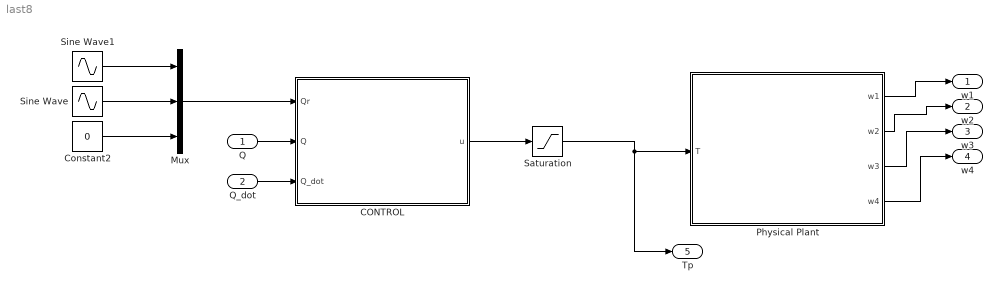
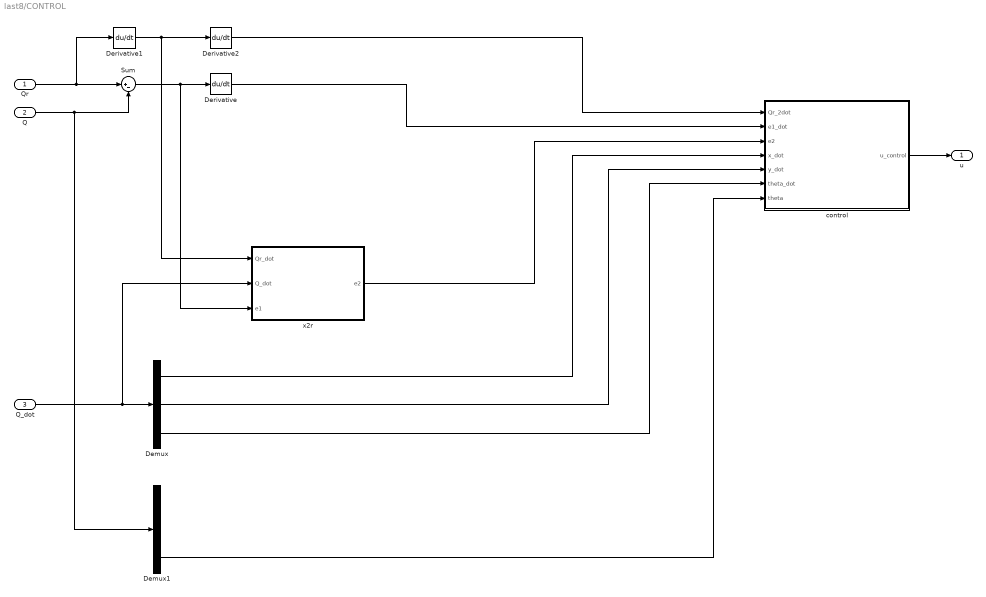
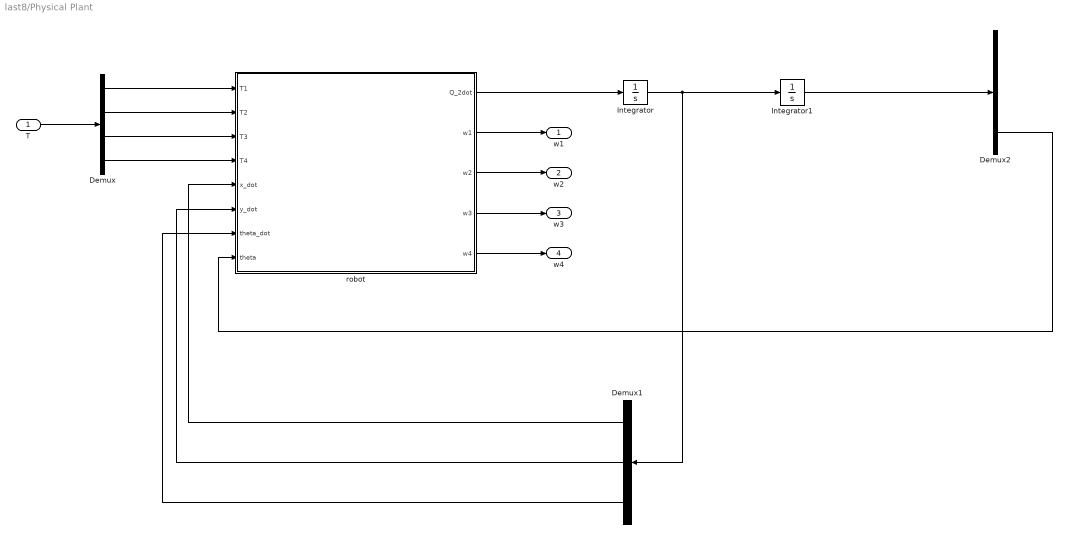
== matlab function last8/Physical Plant/robot ==
function [Q_2dot,w1,w2,w3,w4]  = fcn(T1, T2, T3, T4,x_dot,y_dot,theta_dot,theta)
m = 5;
I = 5;
Ib = 0.1;
l1 = 0.3;
l2 = 0.3;
r = 0.048;
g = 9.81;
u = 0.01;
N = m*g/4;
M =[(m+4*Ib/(r*r)) 0 0; 0 (m+4*Ib/(r*r)) 0; 0 0 (I+4*Ib*(l1+l2)*(l1+l2)/(r*r))];
C = [(m+4*Ib/(r*r))*y_dot*theta_dot;-(m+4*Ib/(r*r))*x_dot*theta_dot;0 ];
B = (1/r)*[(cos(theta)+sin(theta)) (cos(theta)-sin(theta)) (cos(theta)+sin(theta)) (cos(theta)-sin(theta));
         (-cos(theta)+sin(theta)) (cos(theta)+sin(theta)) (-cos(theta)+sin(theta)) (cos(theta)+sin(theta)); 
         (-(l1+l2)) (l1+l2) (l1+l2) (-(l1+l2))];
T = [T1;T2;T3;T4];

xm = cos(theta)*x_dot+sin(theta)*y_dot;
ym = -sin(theta)*x_dot+cos(theta)*y_dot;

v_max = 0.1;
if xm > v_max
    xm = v_max;
elseif xm < -v_max
    xm = -v_max;
end
if ym > v_max
    ym = v_max;
elseif ym < -v_max
    ym = -v_max;
end
if theta_dot > v_max
    theta_dot = v_max;
elseif theta_dot < -v_max
    theta_dot = -v_max;
end

w1 = (1/r)*(xm-ym-(l1+l2)*theta_dot);
w2 = (1/r)*(xm+ym+(l1+l2)*theta_dot);
w3 = (1/r)*(xm-ym+(l1+l2)*theta_dot);
w4 = (1/r)*(xm+ym-(l1+l2)*theta_dot);

% w_max = 2;
% if w1 > w_max
%     w1 = w_max;
% elseif w1 < -w_max
%     w1 = -w_max;
% end
% if w2 > w_max
%     w2 = w_max;
% elseif w2 < -w_max
%     w2 = -w_max;
% end
% if w3 > w_max
%     w3 = w_max;
% elseif w3 < -w_max
%     w3 = -w_max;
% end
% if w4 > w_max
%     w4 = w_max;
% elseif w4 < -w_max
%     w4 = -w_max;
% end

Xi=[u*r*N*sign(w1);u*r*N*sign(w2);u*r*N*sign(w3);u*N*r*sign(w4)];

Q_2dot=inv(M)*(B*T-C-B*Xi);

== matlab function last8/CONTROL/control ==
function u_control = fcn(Qr_2dot,e1_dot,e2,x_dot,y_dot,theta_dot,theta)

m = 5;
I = 5;
Ib = 0.1;
l1 = 0.3;
l2 = 0.3;
r = 0.048;
g = 9.81;
u = 0.01;
N = m*g/4;
M = [(m+4*Ib/(r*r)) 0 0; 0 (m+4*Ib/(r*r)) 0; 0 0 (I+4*Ib*(l1+l2)*(l1+l2)/(r*r))];
C = [(m+4*Ib/(r*r))*y_dot*theta_dot;-(m+4*Ib/(r*r))*x_dot*theta_dot;0 ];
B = (1/r)*[(cos(theta)+sin(theta)) (cos(theta)-sin(theta)) (cos(theta)+sin(theta)) (cos(theta)-sin(theta));
    (-cos(theta)+sin(theta)) (cos(theta)+sin(theta)) (-cos(theta)+sin(theta)) (cos(theta)+sin(theta)); 
    (-(l1+l2)) (l1+l2) (l1+l2) (-(l1+l2))];

xm = cos(theta)*x_dot+sin(theta)*y_dot;
ym = -sin(theta)*x_dot+cos(theta)*y_dot;

v_max = 0.1;
if xm > v_max
    xm = v_max;
elseif xm < -v_max
    xm = -v_max;
end
if ym > v_max
    ym = v_max;
elseif ym < -v_max
    ym = -v_max;
end
if theta_dot > v_max
    theta_dot = v_max;
elseif theta_dot < -v_max
    theta_dot = -v_max;
end

w1 = (1/r)*(xm-ym-(l1+l2)*theta_dot);
w2 = (1/r)*(xm+ym+(l1+l2)*theta_dot);
w3 = (1/r)*(xm-ym+(l1+l2)*theta_dot);
w4 = (1/r)*(xm+ym-(l1+l2)*theta_dot);

% w_max = 2;
% if w1 > w_max
%     w1 = w_max;
% elseif w1 < -w_max
%     w1 = -w_max;
% end
% if w2 > w_max
%     w2 = w_max;
% elseif w2 < -w_max
%     w2 = -w_max;
% end
% if w3 > w_max
%     w3 = w_max;
% elseif w3 < -w_max
%     w3 = -w_max;
% end
% if w4 > w_max
%     w4 = w_max;
% elseif w4 < -w_max
%     w4 = -w_max;
% end

Xi=[u*r*N*sign(w1);u*r*N*sign(w2);u*r*N*sign(w3);u*N*r*sign(w4)];

k1 = [0.01 0 0;
      0 0.01 0;
      0 0 0.01];
k2 = [1 0 0;
      0 1 0;
      0 0 1];
  
u_control = B'*inv(B*B')*M*((Qr_2dot+k1*e1_dot)+inv(M)*C+inv(M)*B*Xi+k2*e2);

== matlab function last8/CONTROL/x2r ==
function e2  = fcn(Qr_dot,Q_dot,e1)

k1 = [1 0 0;
      0 1 0;
      0 0 1];
 
%x2r_dot = (Qr_2dot+k1*e1_dot);
x2r = Qr_dot + k1*e1;
e2 = x2r - Q_dot;

/*
 * File: last8.c
 *
 * Code generated for Simulink model 'last8'.
 *
 * Model version                  : 7.90
 * Simulink Coder version         : 9.4 (R2020b) 29-Jul-2020
 * C/C++ source code generated on : Wed Jun  5 09:42:40 2024
 *
 * Target selection: ert.tlc
 * Embedded hardware selection: ARM Compatible->ARM Cortex-M
 * Code generation objectives:
 *    1. Execution efficiency
 *    2. RAM efficiency
 * Validation result: Not run
 */

#include "last8.h"
#define NumBitsPerChar                 8U

 /* Private macros used by the generated code to access rtModel */
#ifndef rtmIsMajorTimeStep
#define rtmIsMajorTimeStep(rtm)        (((rtm)->Timing.simTimeStep) == MAJOR_TIME_STEP)
#endif

#ifndef rtmIsMinorTimeStep
#define rtmIsMinorTimeStep(rtm)        (((rtm)->Timing.simTimeStep) == MINOR_TIME_STEP)
#endif

#ifndef rtmSetTPtr
#define rtmSetTPtr(rtm, val)           ((rtm)->Timing.t = (val))
#endif

/* Continuous states */
X rtX;

/* Block signals and states (default storage) */
DW rtDW;

/* External inputs (root inport signals with default storage) */
ExtU rtU;

/* External outputs (root outports fed by signals with default storage) */
ExtY rtY;

/* Real-time model */
static RT_MODEL rtM_;
RT_MODEL* const rtM = &rtM_;

/* private model entry point functions */
extern void last8_derivatives(void);
static real_T rtGetInf(void);
static real32_T rtGetInfF(void);
static real_T rtGetMinusInf(void);
static real32_T rtGetMinusInfF(void);
static real_T rtGetNaN(void);
static real32_T rtGetNaNF(void);
extern real_T rtInf;
extern real_T rtMinusInf;
extern real_T rtNaN;
extern real32_T rtInfF;
extern real32_T rtMinusInfF;
extern real32_T rtNaNF;
static void rt_InitInfAndNaN(size_t realSize);
static boolean_T rtIsInf(real_T value);
static boolean_T rtIsInfF(real32_T value);
static boolean_T rtIsNaN(real_T value);
static boolean_T rtIsNaNF(real32_T value);
typedef struct {
    struct {
        uint32_T wordH;
        uint32_T wordL;
    } words;
} BigEndianIEEEDouble;

typedef struct {
    struct {
        uint32_T wordL;
        uint32_T wordH;
    } words;
} LittleEndianIEEEDouble;

typedef struct {
    union {
        real32_T wordLreal;
        uint32_T wordLuint;
    } wordL;
} IEEESingle;

real_T rtInf;
real_T rtMinusInf;
real_T rtNaN;
real32_T rtInfF;
real32_T rtMinusInfF;
real32_T rtNaNF;

/*
 * Initialize rtInf needed by the generated code.
 * Inf is initialized as non-signaling. Assumes IEEE.
 */
static real_T rtGetInf(void)
{
    size_t bitsPerReal = sizeof(real_T) * (NumBitsPerChar);
    real_T inf = 0.0;
    if (bitsPerReal == 32U) {
        inf = rtGetInfF();
    }
    else {
        union {
            LittleEndianIEEEDouble bitVal;
            real_T fltVal;
        } tmpVal;

        tmpVal.bitVal.words.wordH = 0x7FF00000U;
        tmpVal.bitVal.words.wordL = 0x00000000U;
        inf = tmpVal.fltVal;
    }

    return inf;
}

/*
 * Initialize rtInfF needed by the generated code.
 * Inf is initialized as non-signaling. Assumes IEEE.
 */
static real32_T rtGetInfF(void)
{
    IEEESingle infF;
    infF.wordL.wordLuint = 0x7F800000U;
    return infF.wordL.wordLreal;
}

/*
 * Initialize rtMinusInf needed by the generated code.
 * Inf is initialized as non-signaling. Assumes IEEE.
 */
static real_T rtGetMinusInf(void)
{
    size_t bitsPerReal = sizeof(real_T) * (NumBitsPerChar);
    real_T minf = 0.0;
    if (bitsPerReal == 32U) {
        minf = rtGetMinusInfF();
    }
    else {
        union {
            LittleEndianIEEEDouble bitVal;
            real_T fltVal;
        } tmpVal;

        tmpVal.bitVal.words.wordH = 0xFFF00000U;
        tmpVal.bitVal.words.wordL = 0x00000000U;
        minf = tmpVal.fltVal;
    }

    return minf;
}

/*
 * Initialize rtMinusInfF needed by the generated code.
 * Inf is initialized as non-signaling. Assumes IEEE.
 */
static real32_T rtGetMinusInfF(void)
{
    IEEESingle minfF;
    minfF.wordL.wordLuint = 0xFF800000U;
    return minfF.wordL.wordLreal;
}

/*
 * Initialize rtNaN needed by the generated code.
 * NaN is initialized as non-signaling. Assumes IEEE.
 */
static real_T rtGetNaN(void)
{
    size_t bitsPerReal = sizeof(real_T) * (NumBitsPerChar);
    real_T nan = 0.0;
    if (bitsPerReal == 32U) {
        nan = rtGetNaNF();
    }
    else {
        union {
            LittleEndianIEEEDouble bitVal;
            real_T fltVal;
        } tmpVal;

        tmpVal.bitVal.words.wordH = 0xFFF80000U;
        tmpVal.bitVal.words.wordL = 0x00000000U;
        nan = tmpVal.fltVal;
    }

    return nan;
}

/*
 * Initialize rtNaNF needed by the generated code.
 * NaN is initialized as non-signaling. Assumes IEEE.
 */
static real32_T rtGetNaNF(void)
{
    IEEESingle nanF = { { 0 } };

    nanF.wordL.wordLuint = 0xFFC00000U;
    return nanF.wordL.wordLreal;
}

/*
 * Initialize the rtInf, rtMinusInf, and rtNaN needed by the
 * generated code. NaN is initialized as non-signaling. Assumes IEEE.
 */
static void rt_InitInfAndNaN(size_t realSize)
{
    (void)(realSize);
    rtNaN = rtGetNaN();
    rtNaNF = rtGetNaNF();
    rtInf = rtGetInf();
    rtInfF = rtGetInfF();
    rtMinusInf = rtGetMinusInf();
    rtMinusInfF = rtGetMinusInfF();
}

/* Test if value is infinite */
static boolean_T rtIsInf(real_T value)
{
    return (boolean_T)((value == rtInf || value == rtMinusInf) ? 1U : 0U);
}

/* Test if single-precision value is infinite */
static boolean_T rtIsInfF(real32_T value)
{
    return (boolean_T)(((value) == rtInfF || (value) == rtMinusInfF) ? 1U : 0U);
}

/* Test if value is not a number */
static boolean_T rtIsNaN(real_T value)
{
    boolean_T result = (boolean_T)0;
    size_t bitsPerReal = sizeof(real_T) * (NumBitsPerChar);
    if (bitsPerReal == 32U) {
        result = rtIsNaNF((real32_T)value);
    }
    else {
        union {
            LittleEndianIEEEDouble bitVal;
            real_T fltVal;
        } tmpVal;

        tmpVal.fltVal = value;
        result = (boolean_T)((tmpVal.bitVal.words.wordH & 0x7FF00000) == 0x7FF00000 &&
            ((tmpVal.bitVal.words.wordH & 0x000FFFFF) != 0 ||
                (tmpVal.bitVal.words.wordL != 0)));
    }

    return result;
}

/* Test if single-precision value is not a number */
static boolean_T rtIsNaNF(real32_T value)
{
    IEEESingle tmp;
    tmp.wordL.wordLreal = value;
    return (boolean_T)((tmp.wordL.wordLuint & 0x7F800000) == 0x7F800000 &&
        (tmp.wordL.wordLuint & 0x007FFFFF) != 0);
}

/*
 * This function updates continuous states using the ODE4 fixed-step
 * solver algorithm
 */
static void rt_ertODEUpdateContinuousStates(RTWSolverInfo* si)
{
    time_T t = rtsiGetT(si);
    time_T tnew = rtsiGetSolverStopTime(si);
    time_T h = rtsiGetStepSize(si);
    real_T* x = rtsiGetContStates(si);
    ODE4_IntgData* id = (ODE4_IntgData*)rtsiGetSolverData(si);
    real_T* y = id->y;
    real_T* f0 = id->f[0];
    real_T* f1 = id->f[1];
    real_T* f2 = id->f[2];
    real_T* f3 = id->f[3];
    real_T temp;
    int_T i;
    int_T nXc = 6;
    rtsiSetSimTimeStep(si, MINOR_TIME_STEP);

    /* Save the state values at time t in y, we'll use x as ynew. */
    (void)memcpy(y, x,
        (uint_T)nXc * sizeof(real_T));

    /* Assumes that rtsiSetT and ModelOutputs are up-to-date */
    /* f0 = f(t,y) */
    rtsiSetdX(si, f0);
    last8_derivatives();

    /* f1 = f(t + (h/2), y + (h/2)*f0) */
    temp = 0.5 * h;
    for (i = 0; i < nXc; i++) {
        x[i] = y[i] + (temp * f0[i]);
    }

    rtsiSetT(si, t + temp);
    rtsiSetdX(si, f1);
    last8_step();
    last8_derivatives();

    /* f2 = f(t + (h/2), y + (h/2)*f1) */
    for (i = 0; i < nXc; i++) {
        x[i] = y[i] + (temp * f1[i]);
    }

    rtsiSetdX(si, f2);
    last8_step();
    last8_derivatives();

    /* f3 = f(t + h, y + h*f2) */
    for (i = 0; i < nXc; i++) {
        x[i] = y[i] + (h * f2[i]);
    }

    rtsiSetT(si, tnew);
    rtsiSetdX(si, f3);
    last8_step();
    last8_derivatives();

    /* tnew = t + h
       ynew = y + (h/6)*(f0 + 2*f1 + 2*f2 + 2*f3) */
    temp = h / 6.0;
    for (i = 0; i < nXc; i++) {
        x[i] = y[i] + temp * (f0[i] + 2.0 * f1[i] + 2.0 * f2[i] + f3[i]);
    }

    rtsiSetSimTimeStep(si, MAJOR_TIME_STEP);
}

/* Model step function */
void last8_step(void)
{
    if (rtmIsMajorTimeStep(rtM)) {
        /* set solver stop time */
        rtsiSetSolverStopTime(&rtM->solverInfo, ((rtM->Timing.clockTick0 + 1) *
            rtM->Timing.stepSize0));
    }                                    /* end MajorTimeStep */

    /* Update absolute time of base rate at minor time step */
    if (rtmIsMinorTimeStep(rtM)) {
        rtM->Timing.t[0] = rtsiGetT(&rtM->solverInfo);
    }

    {
        static const real_T a_0[9] = { 0.01, 0.0, 0.0, 0.0, 0.01, 0.0, 0.0, 0.0,
          0.01 };

        static const real_T b_a[9] = { 0.0055987558320373249, -0.0, 0.0, -0.0,
          0.0055987558320373249, -0.0, -0.0, -0.0, 0.014814814814814815 };

        static const real_T b_b[9] = { 178.61111111111111, 0.0, 0.0, 0.0,
          178.61111111111111, 0.0, 0.0, 0.0, 67.5 };

        static const int8_T a[9] = { 1, 0, 0, 0, 1, 0, 0, 0, 1 };

        real_T B_0[12];
        real_T y_tmp[12];
        real_T y_tmp_0[12];
        real_T x[9];
        real_T y[9];
        real_T rtb_Saturation[4];
        real_T rtb_Derivative2[3];
        real_T rtb_Derivative2_0[3];
        real_T tmp[3];
        real_T(*lastU)[3];
        real_T B_1;
        real_T B_2;
        real_T B_tmp;
        real_T SineWave1_tmp;
        real_T absx11;
        real_T absx11_tmp;
        real_T absx21;
        real_T absx31;
        real_T rtb_Derivative_idx_0;
        real_T rtb_Derivative_idx_1;
        real_T rtb_Derivative_idx_2;
        real_T rtb_Saturation_idx_3;
        real_T tmp_0;
        real_T xm;
        real_T ym;
        int32_T itmp;
        int32_T p1;
        int32_T p2;
        int32_T p3;

        /* Sin: '<Root>/Sine Wave1' incorporates:
         *  Sin: '<Root>/Sine Wave'
         */
        SineWave1_tmp = rtM->Timing.t[0];

        /* Sin: '<Root>/Sine Wave1' */
        rtDW.SineWave1 = sin(0.20943951023931953 * SineWave1_tmp) * 0.5 + 1.5;

        /* Sin: '<Root>/Sine Wave' */
        rtDW.SineWave = sin(0.41887902047863906 * SineWave1_tmp) * 0.5 + 1.2;

        /* Derivative: '<S1>/Derivative1' incorporates:
         *  Derivative: '<S1>/Derivative'
         *  Derivative: '<S1>/Derivative2'
         */
        SineWave1_tmp = rtM->Timing.t[0];
        if ((rtDW.TimeStampA >= SineWave1_tmp) && (rtDW.TimeStampB >= SineWave1_tmp))
        {
            /* Derivative: '<S1>/Derivative1' */
            rtDW.Derivative1[0] = 0.0;
            rtDW.Derivative1[1] = 0.0;
            rtDW.Derivative1[2] = 0.0;
        }
        else {
            xm = rtDW.TimeStampA;
            lastU = &rtDW.LastUAtTimeA;
            if (rtDW.TimeStampA < rtDW.TimeStampB) {
                if (rtDW.TimeStampB < SineWave1_tmp) {
                    xm = rtDW.TimeStampB;
                    lastU = &rtDW.LastUAtTimeB;
                }
            }
            else {
                if (rtDW.TimeStampA >= SineWave1_tmp) {
                    xm = rtDW.TimeStampB;
                    lastU = &rtDW.LastUAtTimeB;
                }
            }

            xm = SineWave1_tmp - xm;

            /* Derivative: '<S1>/Derivative1' incorporates:
             *  Constant: '<Root>/Constant2'
             */
            rtDW.Derivative1[0] = (rtDW.SineWave1 - (*lastU)[0]) / xm;
            rtDW.Derivative1[1] = (rtDW.SineWave - (*lastU)[1]) / xm;
            rtDW.Derivative1[2] = (0.0 - (*lastU)[2]) / xm;
        }

        /* End of Derivative: '<S1>/Derivative1' */

        /* Derivative: '<S1>/Derivative2' */
        if ((rtDW.TimeStampA_m >= SineWave1_tmp) && (rtDW.TimeStampB_i >=
            SineWave1_tmp)) {
            rtb_Derivative2[0] = 0.0;
            rtb_Derivative2[1] = 0.0;
            rtb_Derivative2[2] = 0.0;
        }
        else {
            xm = rtDW.TimeStampA_m;
            lastU = &rtDW.LastUAtTimeA_d;
            if (rtDW.TimeStampA_m < rtDW.TimeStampB_i) {
                if (rtDW.TimeStampB_i < SineWave1_tmp) {
                    xm = rtDW.TimeStampB_i;
                    lastU = &rtDW.LastUAtTimeB_o;
                }
            }
            else {
                if (rtDW.TimeStampA_m >= SineWave1_tmp) {
                    xm = rtDW.TimeStampB_i;
                    lastU = &rtDW.LastUAtTimeB_o;
                }
            }

            xm = SineWave1_tmp - xm;
            rtb_Derivative2[0] = (rtDW.Derivative1[0] - (*lastU)[0]) / xm;
            rtb_Derivative2[1] = (rtDW.Derivative1[1] - (*lastU)[1]) / xm;
            rtb_Derivative2[2] = (rtDW.Derivative1[2] - (*lastU)[2]) / xm;
        }

        /* Sum: '<S1>/Sum' incorporates:
         *  Constant: '<Root>/Constant2'
         *  Inport: '<Root>/Q'
         */
        rtDW.Sum[0] = rtDW.SineWave1 - rtU.Q[0];
        rtDW.Sum[1] = rtDW.SineWave - rtU.Q[1];
        rtDW.Sum[2] = 0.0 - rtU.Q[2];

        /* Derivative: '<S1>/Derivative' */
        if ((rtDW.TimeStampA_o >= SineWave1_tmp) && (rtDW.TimeStampB_g >=
            SineWave1_tmp)) {
            rtb_Derivative_idx_0 = 0.0;
            rtb_Derivative_idx_1 = 0.0;
            rtb_Derivative_idx_2 = 0.0;
        }
        else {
            xm = rtDW.TimeStampA_o;
            lastU = &rtDW.LastUAtTimeA_k;
            if (rtDW.TimeStampA_o < rtDW.TimeStampB_g) {
                if (rtDW.TimeStampB_g < SineWave1_tmp) {
                    xm = rtDW.TimeStampB_g;
                    lastU = &rtDW.LastUAtTimeB_on;
                }
            }
            else {
                if (rtDW.TimeStampA_o >= SineWave1_tmp) {
                    xm = rtDW.TimeStampB_g;
                    lastU = &rtDW.LastUAtTimeB_on;
                }
            }

            xm = SineWave1_tmp - xm;
            rtb_Derivative_idx_0 = (rtDW.Sum[0] - (*lastU)[0]) / xm;
            rtb_Derivative_idx_1 = (rtDW.Sum[1] - (*lastU)[1]) / xm;
            rtb_Derivative_idx_2 = (rtDW.Sum[2] - (*lastU)[2]) / xm;
        }

        /* MATLAB Function: '<S1>/control' incorporates:
         *  Inport: '<Root>/Q'
         *  Inport: '<Root>/Q_dot'
         *  Saturate: '<Root>/Saturation'
         */
        SineWave1_tmp = rtU.Q_dot[2];
        ym = cos(rtU.Q[2]);
        absx11 = sin(rtU.Q[2]);
        B_0[0] = (ym + absx11) * 20.833333333333332;
        B_0[3] = (ym - absx11) * 20.833333333333332;
        B_tmp = (cos(rtU.Q[2]) + sin(rtU.Q[2])) * 20.833333333333332;
        B_0[6] = B_tmp;
        B_0[9] = (cos(rtU.Q[2]) - sin(rtU.Q[2])) * 20.833333333333332;
        B_0[1] = (-ym + absx11) * 20.833333333333332;
        B_0[4] = B_tmp;
        B_0[7] = (-cos(rtU.Q[2]) + sin(rtU.Q[2])) * 20.833333333333332;
        B_0[10] = B_tmp;
        B_0[2] = -12.499999999999998;
        B_0[5] = 12.499999999999998;
        B_0[8] = 12.499999999999998;
        B_0[11] = -12.499999999999998;
        xm = ym * rtU.Q_dot[0] + absx11 * rtU.Q_dot[1];
        ym = -absx11 * rtU.Q_dot[0] + ym * rtU.Q_dot[1];
        if (xm > 0.1) {
            xm = 0.1;
        }
        else {
            if (xm < -0.1) {
                xm = -0.1;
            }
        }

        if (ym > 0.1) {
            ym = 0.1;
        }
        else {
            if (ym < -0.1) {
                ym = -0.1;
            }
        }

        if (rtU.Q_dot[2] > 0.1) {
            SineWave1_tmp = 0.1;
        }
        else {
            if (rtU.Q_dot[2] < -0.1) {
                SineWave1_tmp = -0.1;
            }
        }

        for (p1 = 0; p1 < 3; p1++) {
            p3 = p1 << 2;
            y_tmp[p3] = B_0[p1];
            y_tmp[p3 + 1] = B_0[p1 + 3];
            y_tmp[p3 + 2] = B_0[p1 + 6];
            y_tmp[p3 + 3] = B_0[p1 + 9];
            for (p2 = 0; p2 < 3; p2++) {
                itmp = p2 + 3 * p1;
                y[itmp] = 0.0;
                y[itmp] += y_tmp[p3] * B_0[p2];
                y[itmp] += y_tmp[p3 + 1] * B_0[p2 + 3];
                y[itmp] += y_tmp[p3 + 2] * B_0[p2 + 6];
                y[itmp] += y_tmp[p3 + 3] * B_0[p2 + 9];
            }
        }

        memcpy(&x[0], &y[0], 9U * sizeof(real_T));
        p1 = 0;
        p2 = 3;
        p3 = 6;
        absx11 = fabs(y[0]);
        absx21 = fabs(y[1]);
        absx31 = fabs(y[2]);
        if ((absx21 > absx11) && (absx21 > absx31)) {
            p1 = 3;
            p2 = 0;
            x[0] = y[1];
            x[1] = y[0];
            x[3] = y[4];
            x[4] = y[3];
            x[6] = y[7];
            x[7] = y[6];
        }
        else {
            if (absx31 > absx11) {
                p1 = 6;
                p3 = 0;
                x[0] = y[2];
                x[2] = y[0];
                x[3] = y[5];
                x[5] = y[3];
                x[6] = y[8];
                x[8] = y[6];
            }
        }

        absx11_tmp = x[1] / x[0];
        x[1] = absx11_tmp;
        B_tmp = x[2] / x[0];
        x[2] = B_tmp;
        x[4] -= absx11_tmp * x[3];
        x[5] -= B_tmp * x[3];
        x[7] -= absx11_tmp * x[6];
        x[8] -= B_tmp * x[6];
        if (fabs(x[5]) > fabs(x[4])) {
            itmp = p2;
            p2 = p3;
            p3 = itmp;
            x[1] = B_tmp;
            x[2] = absx11_tmp;
            absx11 = x[4];
            x[4] = x[5];
            x[5] = absx11;
            absx11 = x[7];
            x[7] = x[8];
            x[8] = absx11;
        }

        absx11_tmp = x[5] / x[4];
        x[8] -= absx11_tmp * x[7];
        absx11 = (absx11_tmp * x[1] - x[2]) / x[8];
        absx21 = -(x[7] * absx11 + x[1]) / x[4];
        y[p1] = ((1.0 - x[3] * absx21) - x[6] * absx11) / x[0];
        y[p1 + 1] = absx21;
        y[p1 + 2] = absx11;
        absx11 = -absx11_tmp / x[8];
        absx21 = (1.0 - x[7] * absx11) / x[4];
        y[p2] = -(x[3] * absx21 + x[6] * absx11) / x[0];
        y[p2 + 1] = absx21;
        y[p2 + 2] = absx11;
        absx11 = 1.0 / x[8];
        absx21 = -x[7] * absx11 / x[4];
        y[p3] = -(x[3] * absx21 + x[6] * absx11) / x[0];
        y[p3 + 1] = absx21;
        y[p3 + 2] = absx11;
        for (p1 = 0; p1 < 3; p1++) {
            for (p2 = 0; p2 < 4; p2++) {
                p3 = p2 + (p1 << 2);
                y_tmp_0[p3] = 0.0;
                y_tmp_0[p3] += y[3 * p1] * y_tmp[p2];
                y_tmp_0[p3] += y[3 * p1 + 1] * y_tmp[p2 + 4];
                y_tmp_0[p3] += y[3 * p1 + 2] * y_tmp[p2 + 8];
            }
        }

        B_tmp = 178.61111111111111 * rtU.Q_dot[1] * rtU.Q_dot[2];
        absx11_tmp = -178.61111111111111 * rtU.Q_dot[0] * rtU.Q_dot[2];
        absx31 = xm - ym;
        absx11 = (absx31 - 0.6 * SineWave1_tmp) * 20.833333333333332;
        ym += xm;
        absx21 = (ym + 0.6 * SineWave1_tmp) * 20.833333333333332;
        absx31 = (absx31 + 0.6 * SineWave1_tmp) * 20.833333333333332;
        xm = (ym - 0.6 * SineWave1_tmp) * 20.833333333333332;
        if (absx11 < 0.0) {
            absx11 = -1.0;
        }
        else if (absx11 > 0.0) {
            absx11 = 1.0;
        }
        else if (absx11 == 0.0) {
            absx11 = 0.0;
        }
        else {
            absx11 = (rtNaN);
        }

        SineWave1_tmp = 0.0058860000000000006 * absx11;
        if (absx21 < 0.0) {
            absx11 = -1.0;
        }
        else if (absx21 > 0.0) {
            absx11 = 1.0;
        }
        else if (absx21 == 0.0) {
            absx11 = 0.0;
        }
        else {
            absx11 = (rtNaN);
        }

        absx21 = 0.0058860000000000006 * absx11;
        if (absx31 < 0.0) {
            absx11 = -1.0;
        }
        else if (absx31 > 0.0) {
            absx11 = 1.0;
        }
        else if (absx31 == 0.0) {
            absx11 = 0.0;
        }
        else {
            absx11 = (rtNaN);
        }

        ym = 0.0058860000000000006 * absx11;
        if (xm < 0.0) {
            absx11 = -1.0;
        }
        else if (xm > 0.0) {
            absx11 = 1.0;
        }
        else if (xm == 0.0) {
            absx11 = 0.0;
        }
        else {
            absx11 = (rtNaN);
        }

        xm = 0.0058860000000000006 * absx11;
        for (p1 = 0; p1 < 3; p1++) {
            absx11 = b_a[p1 + 3];
            absx31 = b_a[p1 + 6];
            for (p2 = 0; p2 < 4; p2++) {
                p3 = p1 + 3 * p2;
                y_tmp[p3] = 0.0;
                y_tmp[p3] += B_0[3 * p2] * b_a[p1];
                y_tmp[p3] += B_0[3 * p2 + 1] * absx11;
                y_tmp[p3] += B_0[3 * p2 + 2] * absx31;
            }

            /* MATLAB Function: '<S1>/x2r' */
            tmp[p1] = ((((real_T)a[p1 + 3] * rtDW.Sum[1] + (real_T)a[p1] * rtDW.Sum[0])
                + (real_T)a[p1 + 6] * rtDW.Sum[2]) + rtDW.Derivative1[p1]) -
                rtU.Q_dot[p1];
            rtb_Derivative2_0[p1] = ((((a_0[p1 + 3] * rtb_Derivative_idx_1 + a_0[p1] *
                rtb_Derivative_idx_0) + a_0[p1 + 6] * rtb_Derivative_idx_2) +
                rtb_Derivative2[p1]) + (absx31 * 0.0 + (absx11 * absx11_tmp + b_a[p1] *
                    B_tmp))) + (((y_tmp[p1 + 3] * absx21 + y_tmp[p1] * SineWave1_tmp) +
                        y_tmp[p1 + 6] * ym) + y_tmp[p1 + 9] * xm);
        }

        for (p1 = 0; p1 < 3; p1++) {
            for (p2 = 0; p2 < 4; p2++) {
                p3 = p2 + (p1 << 2);
                y_tmp[p3] = 0.0;
                y_tmp[p3] += b_b[3 * p1] * y_tmp_0[p2];
                y_tmp[p3] += b_b[3 * p1 + 1] * y_tmp_0[p2 + 4];
                y_tmp[p3] += b_b[3 * p1 + 2] * y_tmp_0[p2 + 8];
            }

            rtb_Derivative2[p1] = (real_T)a[p1 + 6] * tmp[2] + ((real_T)a[p1 + 3] *
                tmp[1] + (real_T)a[p1] * tmp[0]);
        }

        B_tmp = rtb_Derivative2_0[0] + rtb_Derivative2[0];
        SineWave1_tmp = rtb_Derivative2_0[1] + rtb_Derivative2[1];
        absx11_tmp = rtb_Derivative2_0[2] + rtb_Derivative2[2];
        for (p1 = 0; p1 < 4; p1++) {
            absx11 = y_tmp[p1 + 8] * absx11_tmp + (y_tmp[p1 + 4] * SineWave1_tmp +
                y_tmp[p1] * B_tmp);

            /* Saturate: '<Root>/Saturation' */
            if (absx11 > 10.0) {
                absx11 = 10.0;
            }
            else {
                if (absx11 < -10.0) {
                    absx11 = -10.0;
                }
            }

            /* Outport: '<Root>/Tp' */
            rtY.Tp[p1] = absx11;
            rtb_Saturation[p1] = absx11;
        }

        /* End of MATLAB Function: '<S1>/control' */

        /* Integrator: '<S2>/Integrator' */
        rtDW.Integrator[0] = rtX.Integrator_CSTATE[0];
        rtDW.Integrator[1] = rtX.Integrator_CSTATE[1];
        rtDW.Integrator[2] = rtX.Integrator_CSTATE[2];

        /* MATLAB Function: '<S2>/robot' incorporates:
         *  Integrator: '<S2>/Integrator1'
         */
        SineWave1_tmp = rtDW.Integrator[2];
        ym = cos(rtX.Integrator1_CSTATE[2]);
        absx11 = sin(rtX.Integrator1_CSTATE[2]);
        B_0[0] = (ym + absx11) * 20.833333333333332;
        B_0[3] = (ym - absx11) * 20.833333333333332;
        B_tmp = (cos(rtX.Integrator1_CSTATE[2]) + sin(rtX.Integrator1_CSTATE[2])) *
            20.833333333333332;
        B_0[6] = B_tmp;
        B_0[9] = (cos(rtX.Integrator1_CSTATE[2]) - sin(rtX.Integrator1_CSTATE[2])) *
            20.833333333333332;
        B_0[1] = (-ym + absx11) * 20.833333333333332;
        B_0[4] = B_tmp;
        B_0[7] = (-cos(rtX.Integrator1_CSTATE[2]) + sin(rtX.Integrator1_CSTATE[2])) *
            20.833333333333332;
        B_0[10] = B_tmp;
        B_0[2] = -12.499999999999998;
        B_0[5] = 12.499999999999998;
        B_0[8] = 12.499999999999998;
        B_0[11] = -12.499999999999998;
        xm = ym * rtDW.Integrator[0] + absx11 * rtDW.Integrator[1];
        ym = -absx11 * rtDW.Integrator[0] + ym * rtDW.Integrator[1];
        if (xm > 0.1) {
            xm = 0.1;
        }
        else {
            if (xm < -0.1) {
                xm = -0.1;
            }
        }

        if (ym > 0.1) {
            ym = 0.1;
        }
        else {
            if (ym < -0.1) {
                ym = -0.1;
            }
        }

        if (rtDW.Integrator[2] > 0.1) {
            SineWave1_tmp = 0.1;
        }
        else {
            if (rtDW.Integrator[2] < -0.1) {
                SineWave1_tmp = -0.1;
            }
        }

        absx11_tmp = xm - ym;
        absx11 = (absx11_tmp - 0.6 * SineWave1_tmp) * 20.833333333333332;
        B_tmp = xm + ym;
        absx21 = (B_tmp + 0.6 * SineWave1_tmp) * 20.833333333333332;
        absx31 = (absx11_tmp + 0.6 * SineWave1_tmp) * 20.833333333333332;
        SineWave1_tmp = (B_tmp - 0.6 * SineWave1_tmp) * 20.833333333333332;
        rtb_Derivative_idx_0 = rtb_Saturation[0];
        rtb_Derivative_idx_1 = rtb_Saturation[1];
        rtb_Derivative_idx_2 = rtb_Saturation[2];
        rtb_Saturation_idx_3 = rtb_Saturation[3];
        tmp[0] = 178.61111111111111 * rtDW.Integrator[1] * rtDW.Integrator[2];
        tmp[1] = -178.61111111111111 * rtDW.Integrator[0] * rtDW.Integrator[2];
        tmp[2] = 0.0;
        if (absx11 < 0.0) {
            B_tmp = -1.0;
        }
        else if (absx11 > 0.0) {
            B_tmp = 1.0;
        }
        else if (absx11 == 0.0) {
            B_tmp = 0.0;
        }
        else {
            B_tmp = (rtNaN);
        }

        B_tmp *= 0.0058860000000000006;
        if (absx21 < 0.0) {
            absx11_tmp = -1.0;
        }
        else if (absx21 > 0.0) {
            absx11_tmp = 1.0;
        }
        else if (absx21 == 0.0) {
            absx11_tmp = 0.0;
        }
        else {
            absx11_tmp = (rtNaN);
        }

        absx11_tmp *= 0.0058860000000000006;
        if (absx31 < 0.0) {
            ym = -1.0;
        }
        else if (absx31 > 0.0) {
            ym = 1.0;
        }
        else if (absx31 == 0.0) {
            ym = 0.0;
        }
        else {
            ym = (rtNaN);
        }

        ym *= 0.0058860000000000006;
        if (SineWave1_tmp < 0.0) {
            xm = -1.0;
        }
        else if (SineWave1_tmp > 0.0) {
            xm = 1.0;
        }
        else if (SineWave1_tmp == 0.0) {
            xm = 0.0;
        }
        else {
            xm = (rtNaN);
        }

        xm *= 0.0058860000000000006;
        for (p1 = 0; p1 < 3; p1++) {
            B_1 = B_0[p1];
            tmp_0 = B_1 * B_tmp;
            B_2 = B_1 * rtb_Derivative_idx_0;
            B_1 = B_0[p1 + 3];
            tmp_0 += B_1 * absx11_tmp;
            B_2 += B_1 * rtb_Derivative_idx_1;
            B_1 = B_0[p1 + 6];
            tmp_0 += B_1 * ym;
            B_2 += B_1 * rtb_Derivative_idx_2;
            B_1 = B_0[p1 + 9];
            tmp_0 += B_1 * xm;
            B_2 += B_1 * rtb_Saturation_idx_3;
            rtb_Derivative2_0[p1] = (B_2 - tmp[p1]) - tmp_0;
        }

        for (p1 = 0; p1 < 3; p1++) {
            rtDW.Q_2dot[p1] = 0.0;
            rtDW.Q_2dot[p1] += b_a[p1] * rtb_Derivative2_0[0];
            rtDW.Q_2dot[p1] += b_a[p1 + 3] * rtb_Derivative2_0[1];
            rtDW.Q_2dot[p1] += b_a[p1 + 6] * rtb_Derivative2_0[2];
        }

        /* Outport: '<Root>/w1' incorporates:
         *  MATLAB Function: '<S2>/robot'
         */
        rtY.w1 = absx11;

        /* Outport: '<Root>/w2' incorporates:
         *  MATLAB Function: '<S2>/robot'
         */
        rtY.w2 = absx21;

        /* Outport: '<Root>/w3' incorporates:
         *  MATLAB Function: '<S2>/robot'
         */
        rtY.w3 = absx31;

        /* Outport: '<Root>/w4' incorporates:
         *  MATLAB Function: '<S2>/robot'
         */
        rtY.w4 = SineWave1_tmp;
    }

    if (rtmIsMajorTimeStep(rtM)) {
        real_T(*lastU)[3];

        /* Update for Derivative: '<S1>/Derivative1' incorporates:
         *  Constant: '<Root>/Constant2'
         */
        if (rtDW.TimeStampA == (rtInf)) {
            rtDW.TimeStampA = rtM->Timing.t[0];
            lastU = &rtDW.LastUAtTimeA;
        }
        else if (rtDW.TimeStampB == (rtInf)) {
            rtDW.TimeStampB = rtM->Timing.t[0];
            lastU = &rtDW.LastUAtTimeB;
        }
        else if (rtDW.TimeStampA < rtDW.TimeStampB) {
            rtDW.TimeStampA = rtM->Timing.t[0];
            lastU = &rtDW.LastUAtTimeA;
        }
        else {
            rtDW.TimeStampB = rtM->Timing.t[0];
            lastU = &rtDW.LastUAtTimeB;
        }

        (*lastU)[0] = rtDW.SineWave1;
        (*lastU)[1] = rtDW.SineWave;
        (*lastU)[2] = 0.0;

        /* End of Update for Derivative: '<S1>/Derivative1' */

        /* Update for Derivative: '<S1>/Derivative2' */
        if (rtDW.TimeStampA_m == (rtInf)) {
            rtDW.TimeStampA_m = rtM->Timing.t[0];
            lastU = &rtDW.LastUAtTimeA_d;
        }
        else if (rtDW.TimeStampB_i == (rtInf)) {
            rtDW.TimeStampB_i = rtM->Timing.t[0];
            lastU = &rtDW.LastUAtTimeB_o;
        }
        else if (rtDW.TimeStampA_m < rtDW.TimeStampB_i) {
            rtDW.TimeStampA_m = rtM->Timing.t[0];
            lastU = &rtDW.LastUAtTimeA_d;
        }
        else {
            rtDW.TimeStampB_i = rtM->Timing.t[0];
            lastU = &rtDW.LastUAtTimeB_o;
        }

        (*lastU)[0] = rtDW.Derivative1[0];
        (*lastU)[1] = rtDW.Derivative1[1];
        (*lastU)[2] = rtDW.Derivative1[2];

        /* End of Update for Derivative: '<S1>/Derivative2' */

        /* Update for Derivative: '<S1>/Derivative' */
        if (rtDW.TimeStampA_o == (rtInf)) {
            rtDW.TimeStampA_o = rtM->Timing.t[0];
            lastU = &rtDW.LastUAtTimeA_k;
        }
        else if (rtDW.TimeStampB_g == (rtInf)) {
            rtDW.TimeStampB_g = rtM->Timing.t[0];
            lastU = &rtDW.LastUAtTimeB_on;
        }
        else if (rtDW.TimeStampA_o < rtDW.TimeStampB_g) {
            rtDW.TimeStampA_o = rtM->Timing.t[0];
            lastU = &rtDW.LastUAtTimeA_k;
        }
        else {
            rtDW.TimeStampB_g = rtM->Timing.t[0];
            lastU = &rtDW.LastUAtTimeB_on;
        }

        (*lastU)[0] = rtDW.Sum[0];
        (*lastU)[1] = rtDW.Sum[1];
        (*lastU)[2] = rtDW.Sum[2];

        /* End of Update for Derivative: '<S1>/Derivative' */
    }                                    /* end MajorTimeStep */

    if (rtmIsMajorTimeStep(rtM)) {
        rt_ertODEUpdateContinuousStates(&rtM->solverInfo);

        /* Update absolute time for base rate */
        /* The "clockTick0" counts the number of times the code of this task has
         * been executed. The absolute time is the multiplication of "clockTick0"
         * and "Timing.stepSize0". Size of "clockTick0" ensures timer will not
         * overflow during the application lifespan selected.
         */
        ++rtM->Timing.clockTick0;
        rtM->Timing.t[0] = rtsiGetSolverStopTime(&rtM->solverInfo);

        {
            /* Update absolute timer for sample time: [0.05s, 0.0s] */
            /* The "clockTick1" counts the number of times the code of this task has
             * been executed. The resolution of this integer timer is 0.05, which is the step size
             * of the task. Size of "clockTick1" ensures timer will not overflow during the
             * application lifespan selected.
             */
            rtM->Timing.clockTick1++;
        }
    }                                    /* end MajorTimeStep */
}
